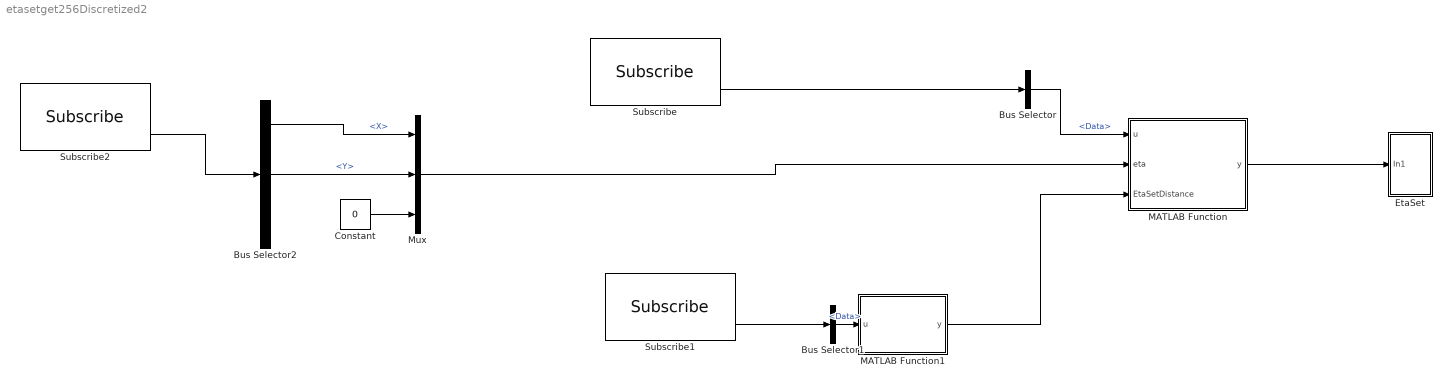
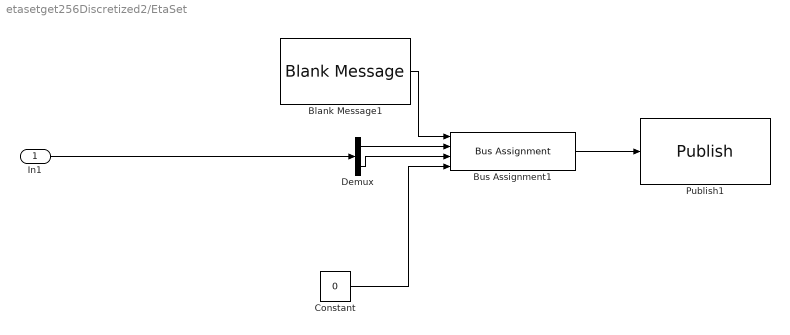
== matlab function etasetget256Discretized2/MATLAB Function ==
function y = fcn(u,eta,EtaSetDistance)

y=[0 0]
Z=length(u)
eta=eta(1:2);

%#codegen
%save('TESTlist2Eta')
Values=[u(1:Z/2) u(Z/2+1:end)];

Iterate2=min([find(Values==1000) ;size(Values,1)])

if u(1,1)==0&&sum((u==0))==Z;
    y=[0 0]
elseif Iterate2==2
%    asl=1
%    a=asl(2);
y(1)=Values(1,2)
y(2)=Values(1,1)
else
%DiscretizedPath
DiscretizedStep=0.01;
counter=1;
DiscretizedPath=zeros(5000,2);
for k=2:Iterate2-1
    DistanceTraveled=norm([Values(k,1)-Values(k-1,1) Values(k,2)-Values(k-1,2)]) ;
    DistanceTraveledX=Values(k,1)-Values(k-1,1);
    DistanceTraveledY=Values(k,2)-Values(k-1,2);
    Niterations=floor(DistanceTraveled/DiscretizedStep);
for z=1:Niterations
    DiscretizedPath(counter,1)=Values(k-1,1)+z*DistanceTraveledX/Niterations;
    DiscretizedPath(counter,2)=Values(k-1,2)+z*DistanceTraveledY/Niterations;
counter=counter+1;
end
end
DiscretizedEnds=min([find(DiscretizedPath==inf) ;size(DiscretizedPath,1)]);
DiscretizedPath=DiscretizedPath(1:DiscretizedEnds-1,1:2);

%%a=asl
eta=eta(2:-1:1)'

%Discretizing PathVector


NearestPointPos=4;
AvstandSaved=1000;
%for i=1:64
%AvstandDummy=(eta(1)-Values(i,1))^2+(eta(2)-Values(i,2))^2;
% if AvstandDummy<AvstandSaved
%     AvstandDummy=AvstandSaved;
% NearestPointPos=i;
% end
%end

    [Avstand NearestPointPos]=min((sum((abs(DiscretizedPath-repmat(eta,size(DiscretizedPath,1),1))).^2')));
if (NearestPointPos-3)>1
    SetPoint=NearestPointPos-3;

else SetPoint=1;
    
end
NIter=round(EtaSetDistance/DiscretizedStep);

SetPoint=max([1 NearestPointPos-NIter])
y(1)=DiscretizedPath(SetPoint,2)
y(2)=DiscretizedPath(SetPoint,1)
%etaset = u;11
%HEADING:
%end
end
y=y
end

== matlab function etasetget256Discretized2/MATLAB Function1 ==
function y = fcn(u)

    y=u;    

if u==0
 y(1)=0.25
end
end

//
// Academic License - for use in teaching, academic research, and meeting
// course requirements at degree granting institutions only.  Not for
// government, commercial, or other organizational use.
//
// File: etasetget256Discretized2.cpp
//
// Code generated for Simulink model 'etasetget256Discretized2'.
//
// Model version                  : 1.122
// Simulink Coder version         : 8.9 (R2015b) 13-Aug-2015
// C/C++ source code generated on : Tue May 10 13:32:34 2016
//
// Target selection: ert.tlc
// Embedded hardware selection: Generic->Unspecified (assume 32-bit Generic)
// Code generation objectives: Unspecified
// Validation result: Not run
//
#include "etasetget256Discretized2.h"
#include "etasetget256Discretized2_private.h"
#define etasetget256Dis_MessageQueueLen (1)

// Block signals (auto storage)
B_etasetget256Discretized2_T etasetget256Discretized2_B;

// Block states (auto storage)
DW_etasetget256Discretized2_T etasetget256Discretized2_DW;

// Real-time model
RT_MODEL_etasetget256Discreti_T etasetget256Discretized2_M_;
RT_MODEL_etasetget256Discreti_T *const etasetget256Discretized2_M =
  &etasetget256Discretized2_M_;

// Forward declaration for local functions
static real_T etasetget256Discretized2_sum(const boolean_T x[256]);
static void etasetget256Discretized2_repmat(const real_T a[2], real_T varargin_1,
  real_T b_data[], int32_T b_sizes[2]);
static void etasetget256Discretized2_abs(const real_T x_data[], const int32_T
  x_sizes[2], real_T y_data[], int32_T y_sizes[2]);
static void etasetget256Discretized2_power(const real_T a_data[], const int32_T
  a_sizes[2], real_T y_data[], int32_T y_sizes[2]);
static void etasetget256Discretized2_sum_k(const real_T x_data[], const int32_T
  x_sizes[2], real_T y_data[], int32_T y_sizes[2]);
static real32_T etasetget256Discretized2_norm(const real32_T x[2]);

// Function for MATLAB Function: '<Root>/MATLAB Function'
static real_T etasetget256Discretized2_sum(const boolean_T x[256])
{
  real_T y;
  int32_T k;
  y = x[0];
  for (k = 0; k < 255; k++) {
    y += (real_T)x[k + 1];
  }

  return y;
}

// Function for MATLAB Function: '<Root>/MATLAB Function'
static void etasetget256Discretized2_repmat(const real_T a[2], real_T varargin_1,
  real_T b_data[], int32_T b_sizes[2])
{
  int32_T itilerow;
  int32_T varargin_1_idx_0;
  int16_T outsize_idx_0;
  outsize_idx_0 = (int16_T)(int32_T)varargin_1;
  b_sizes[0] = outsize_idx_0;
  b_sizes[1] = 2;
  if (!(outsize_idx_0 == 0)) {
    varargin_1_idx_0 = (int32_T)varargin_1;
    for (itilerow = 1; itilerow <= varargin_1_idx_0; itilerow++) {
      b_data[itilerow - 1] = a[0];
    }

    for (itilerow = 1; itilerow <= varargin_1_idx_0; itilerow++) {
      b_data[(varargin_1_idx_0 + itilerow) - 1] = a[1];
    }
  }
}

// Function for MATLAB Function: '<Root>/MATLAB Function'
static void etasetget256Discretized2_abs(const real_T x_data[], const int32_T
  x_sizes[2], real_T y_data[], int32_T y_sizes[2])
{
  int32_T n;
  int32_T k;
  y_sizes[0] = (int16_T)x_sizes[0];
  y_sizes[1] = 2;
  n = x_sizes[0] << 1;
  for (k = 0; k + 1 <= n; k++) {
    y_data[k] = fabs(x_data[k]);
  }
}

// Function for MATLAB Function: '<Root>/MATLAB Function'
static void etasetget256Discretized2_power(const real_T a_data[], const int32_T
  a_sizes[2], real_T y_data[], int32_T y_sizes[2])
{
  int32_T n;
  int32_T k;
  y_sizes[0] = (int16_T)a_sizes[0];
  y_sizes[1] = 2;
  n = a_sizes[0] << 1;
  for (k = 0; k + 1 <= n; k++) {
    y_data[k] = a_data[k] * a_data[k];
  }
}

// Function for MATLAB Function: '<Root>/MATLAB Function'
static void etasetget256Discretized2_sum_k(const real_T x_data[], const int32_T
  x_sizes[2], real_T y_data[], int32_T y_sizes[2])
{
  int32_T ix;
  int32_T iy;
  int32_T ixstart;
  int32_T i;
  y_sizes[0] = 1;
  y_sizes[1] = (int16_T)x_sizes[1];
  if (x_sizes[1] == 0) {
    y_sizes[0] = 1;
    ix = y_sizes[1];
    for (iy = 0; iy < ix; iy++) {
      y_data[iy] = 0.0;
    }
  } else {
    ix = 1;
    iy = -1;
    for (i = 1; i <= x_sizes[1]; i++) {
      ixstart = ix;
      ix += 2;
      iy++;
      y_data[iy] = x_data[ixstart - 1] + x_data[ixstart];
    }
  }
}

real_T rt_roundd_snf(real_T u)
{
  real_T y;
  if (fabs(u) < 4.503599627370496E+15) {
    if (u >= 0.5) {
      y = floor(u + 0.5);
    } else if (u > -0.5) {
      y = u * 0.0;
    } else {
      y = ceil(u - 0.5);
    }
  } else {
    y = u;
  }

  return y;
}

// Function for MATLAB Function: '<Root>/MATLAB Function'
static real32_T etasetget256Discretized2_norm(const real32_T x[2])
{
  real32_T y;
  real32_T scale;
  real32_T absxk;
  real32_T t;
  scale = 1.17549435E-38F;
  absxk = (real32_T)fabs((real_T)x[0]);
  if (absxk > 1.17549435E-38F) {
    y = 1.0F;
    scale = absxk;
  } else {
    t = absxk / 1.17549435E-38F;
    y = t * t;
  }

  absxk = (real32_T)fabs((real_T)x[1]);
  if (absxk > scale) {
    t = scale / absxk;
    y = y * t * t + 1.0F;
    scale = absxk;
  } else {
    t = absxk / scale;
    y += t * t;
  }

  return scale * (real32_T)sqrt((real_T)y);
}

// Model step function
void etasetget256Discretized2_step(void)
{
  real32_T DistanceTraveledX;
  real32_T DistanceTraveledY;
  real32_T Niterations;
  int32_T idx;
  int32_T ixstart;
  int32_T n;
  int32_T c_ix;
  boolean_T guard1;
  boolean_T varargout_1;
  int32_T DiscretizedPath_sizes[2];
  int32_T tmp_sizes[2];

  // Outputs for Atomic SubSystem: '<Root>/Subscribe'
  // Start for MATLABSystem: '<S4>/SourceBlock' incorporates:
  //   MATLABSystem: '<S4>/SourceBlock'

  varargout_1 = Sub_etasetget256Discretized2_404.get_latest_msg
    (&etasetget256Discretized2_B.varargout_2);

  // Outputs for Enabled SubSystem: '<S4>/Enabled Subsystem' incorporates:
  //   EnablePort: '<S9>/Enable'

  // MATLABSystem: '<S4>/SourceBlock' incorporates:
  //   Inport: '<S9>/In1'

  if (varargout_1) {
    etasetget256Discretized2_B.In1 = etasetget256Discretized2_B.varargout_2;
  }

  // End of Outputs for SubSystem: '<S4>/Enabled Subsystem'
  // End of Outputs for SubSystem: '<Root>/Subscribe'

  // Outputs for Atomic SubSystem: '<Root>/Subscribe2'
  // Start for MATLABSystem: '<S6>/SourceBlock' incorporates:
  //   MATLABSystem: '<S6>/SourceBlock'

  varargout_1 = Sub_etasetget256Discretized2_370.get_latest_msg
    (&etasetget256Discretized2_B.varargout_2_m);

  // Outputs for Enabled SubSystem: '<S6>/Enabled Subsystem' incorporates:
  //   EnablePort: '<S11>/Enable'

  // MATLABSystem: '<S6>/SourceBlock' incorporates:
  //   Inport: '<S11>/In1'

  if (varargout_1) {
    etasetget256Discretized2_B.In1_k = etasetget256Discretized2_B.varargout_2_m;
  }

  // End of Outputs for SubSystem: '<S6>/Enabled Subsystem'
  // End of Outputs for SubSystem: '<Root>/Subscribe2'

  // Outputs for Atomic SubSystem: '<Root>/Subscribe1'
  // Start for MATLABSystem: '<S5>/SourceBlock' incorporates:
  //   MATLABSystem: '<S5>/SourceBlock'

  varargout_1 = Sub_etasetget256Discretized2_405.get_latest_msg
    (&etasetget256Discretized2_B.varargout_2_k);

  // Outputs for Enabled SubSystem: '<S5>/Enabled Subsystem' incorporates:
  //   EnablePort: '<S10>/Enable'

  // MATLABSystem: '<S5>/SourceBlock' incorporates:
  //   Inport: '<S10>/In1'

  if (varargout_1) {
    etasetget256Discretized2_B.In1_b = etasetget256Discretized2_B.varargout_2_k;
  }

  // End of Outputs for SubSystem: '<S5>/Enabled Subsystem'
  // End of Outputs for SubSystem: '<Root>/Subscribe1'

  // MATLAB Function: '<Root>/MATLAB Function1'
  // MATLAB Function 'MATLAB Function1': '<S3>:1'
  // '<S3>:1:3'
  etasetget256Discretized2_B.y = etasetget256Discretized2_B.In1_b.Data;
  if (etasetget256Discretized2_B.In1_b.Data == 0.0) {
    // '<S3>:1:5'
    // '<S3>:1:6'
    etasetget256Discretized2_B.y = 0.25;
  }

  // End of MATLAB Function: '<Root>/MATLAB Function1'

  // MATLAB Function: '<Root>/MATLAB Function' incorporates:
  //   SignalConversion: '<S2>/TmpSignal ConversionAt SFunction Inport2'

  // MATLAB Function 'MATLAB Function': '<S2>:1'
  // '<S2>:1:5'
  // save('TESTlist2Eta')
  // '<S2>:1:9'
  for (ixstart = 0; ixstart < 128; ixstart++) {
    etasetget256Discretized2_B.Values[ixstart] =
      etasetget256Discretized2_B.In1.Data[ixstart];
    etasetget256Discretized2_B.Values[ixstart + 128] =
      etasetget256Discretized2_B.In1.Data[128 + ixstart];
  }

  // '<S2>:1:11'
  for (ixstart = 0; ixstart < 256; ixstart++) {
    etasetget256Discretized2_B.x[ixstart] =
      (etasetget256Discretized2_B.Values[ixstart] == 1000.0F);
  }

  idx = 0;
  ixstart = 1;
  varargout_1 = false;
  while ((!varargout_1) && (ixstart < 257)) {
    guard1 = false;
    if (etasetget256Discretized2_B.x[ixstart - 1]) {
      idx++;
      etasetget256Discretized2_B.ii_data[idx - 1] = (int16_T)ixstart;
      if (idx >= 256) {
        varargout_1 = true;
      } else {
        guard1 = true;
      }
    } else {
      guard1 = true;
    }

    if (guard1) {
      ixstart++;
    }
  }

  if (1 > idx) {
    idx = 0;
  }

  n = idx + 1;
  for (ixstart = 0; ixstart < idx; ixstart++) {
    etasetget256Discretized2_B.varargin_1_data[ixstart] =
      etasetget256Discretized2_B.ii_data[ixstart];
  }

  etasetget256Discretized2_B.varargin_1_data[idx] = 128;
  idx = etasetget256Discretized2_B.varargin_1_data[0];
  if (n > 1) {
    for (ixstart = 1; ixstart + 1 <= n; ixstart++) {
      if (etasetget256Discretized2_B.varargin_1_data[ixstart] < idx) {
        idx = etasetget256Discretized2_B.varargin_1_data[ixstart];
      }
    }
  }

  for (ixstart = 0; ixstart < 256; ixstart++) {
    etasetget256Discretized2_B.x[ixstart] =
      (etasetget256Discretized2_B.In1.Data[ixstart] == 0.0F);
  }

  if ((etasetget256Discretized2_B.In1.Data[0] == 0.0F) &&
      (etasetget256Discretized2_sum(etasetget256Discretized2_B.x) == 256.0)) {
    // '<S2>:1:13'
    // '<S2>:1:14'
    etasetget256Discretized2_B.counter = 0.0;
    etasetget256Discretized2_B.y = 0.0;
  } else if (idx == 2) {
    // '<S2>:1:15'
    //     asl=1
    //     a=asl(2);
    // '<S2>:1:18'
    etasetget256Discretized2_B.counter = etasetget256Discretized2_B.Values[128];

    // '<S2>:1:19'
    etasetget256Discretized2_B.y = etasetget256Discretized2_B.Values[0];
  } else {
    // DiscretizedPath
    // '<S2>:1:23'
    etasetget256Discretized2_B.counter = 1.0;

    // '<S2>:1:24'
    memset(&etasetget256Discretized2_B.DiscretizedPath[0], 0, 10000U * sizeof
           (real_T));

    // '<S2>:1:25'
    for (ixstart = 0; ixstart <= idx - 3; ixstart++) {
      // '<S2>:1:25'
      // '<S2>:1:26'
      // '<S2>:1:27'
      DistanceTraveledX = etasetget256Discretized2_B.Values[ixstart + 1] -
        etasetget256Discretized2_B.Values[ixstart];

      // '<S2>:1:28'
      DistanceTraveledY = etasetget256Discretized2_B.Values[ixstart + 129] -
        etasetget256Discretized2_B.Values[ixstart + 128];

      // '<S2>:1:29'
      etasetget256Discretized2_B.Values_c[0] =
        etasetget256Discretized2_B.Values[ixstart + 1] -
        etasetget256Discretized2_B.Values[ixstart];
      etasetget256Discretized2_B.Values_c[1] =
        etasetget256Discretized2_B.Values[ixstart + 129] -
        etasetget256Discretized2_B.Values[ixstart + 128];
      Niterations = (real32_T)floor((real_T)(etasetget256Discretized2_norm
        (etasetget256Discretized2_B.Values_c) / 0.01F));

      // '<S2>:1:30'
      for (n = 0; n < (int32_T)Niterations; n++) {
        // '<S2>:1:30'
        // '<S2>:1:31'
        etasetget256Discretized2_B.DiscretizedPath[(int32_T)
          etasetget256Discretized2_B.counter - 1] = (1.0F + (real32_T)n) *
          DistanceTraveledX / Niterations +
          etasetget256Discretized2_B.Values[ixstart];

        // '<S2>:1:32'
        etasetget256Discretized2_B.DiscretizedPath[(int32_T)
          etasetget256Discretized2_B.counter + 4999] = (1.0F + (real32_T)n) *
          DistanceTraveledY / Niterations +
          etasetget256Discretized2_B.Values[ixstart + 128];

        // '<S2>:1:33'
        etasetget256Discretized2_B.counter++;

        // '<S2>:1:30'
      }

      // '<S2>:1:25'
    }

    // '<S2>:1:36'
    idx = 0;
    ixstart = 1;
    varargout_1 = false;
    while ((!varargout_1) && (ixstart < 10001)) {
      guard1 = false;
      if (etasetget256Discretized2_B.DiscretizedPath[ixstart - 1] == (rtInf)) {
        idx++;
        etasetget256Discretized2_B.c_ii_data[idx - 1] = (int16_T)ixstart;
        if (idx >= 10000) {
          varargout_1 = true;
        } else {
          guard1 = true;
        }
      } else {
        guard1 = true;
      }

      if (guard1) {
        ixstart++;
      }
    }

    if (1 > idx) {
      idx = 0;
    }

    n = idx + 1;
    for (ixstart = 0; ixstart < idx; ixstart++) {
      etasetget256Discretized2_B.varargin_1_data[ixstart] =
        etasetget256Discretized2_B.c_ii_data[ixstart];
    }

    etasetget256Discretized2_B.varargin_1_data[idx] = 5000;
    idx = etasetget256Discretized2_B.varargin_1_data[0];
    if (n > 1) {
      for (ixstart = 1; ixstart + 1 <= n; ixstart++) {
        if (etasetget256Discretized2_B.varargin_1_data[ixstart] < idx) {
          idx = etasetget256Discretized2_B.varargin_1_data[ixstart];
        }
      }
    }

    if (1 > idx - 1) {
      idx = 0;
    } else {
      idx--;
    }

    // '<S2>:1:37'
    // %a=asl
    // '<S2>:1:40'
    // Discretizing PathVector
    // for i=1:64
    // AvstandDummy=(eta(1)-Values(i,1))^2+(eta(2)-Values(i,2))^2;
    //  if AvstandDummy<AvstandSaved
    //      AvstandDummy=AvstandSaved;
    //  NearestPointPos=i;
    //  end
    // end
    etasetget256Discretized2_B.dv0[0] = etasetget256Discretized2_B.In1_k.Y;
    etasetget256Discretized2_B.dv0[1] = etasetget256Discretized2_B.In1_k.X;
    etasetget256Discretized2_repmat(etasetget256Discretized2_B.dv0, (real_T)idx,
      etasetget256Discretized2_B.tmp_data, etasetget256Discretized2_B.tmp_sizes);
    DiscretizedPath_sizes[0] = idx;
    DiscretizedPath_sizes[1] = 2;
    for (ixstart = 0; ixstart < idx; ixstart++) {
      etasetget256Discretized2_B.DiscretizedPath_data[ixstart] =
        etasetget256Discretized2_B.DiscretizedPath[ixstart] -
        etasetget256Discretized2_B.tmp_data[ixstart];
    }

    for (ixstart = 0; ixstart < idx; ixstart++) {
      etasetget256Discretized2_B.DiscretizedPath_data[ixstart + idx] =
        etasetget256Discretized2_B.DiscretizedPath[ixstart + 5000] -
        etasetget256Discretized2_B.tmp_data[ixstart +
        etasetget256Discretized2_B.tmp_sizes[0]];
    }

    etasetget256Discretized2_abs(etasetget256Discretized2_B.DiscretizedPath_data,
      DiscretizedPath_sizes, etasetget256Discretized2_B.tmp_data,
      etasetget256Discretized2_B.tmp_sizes);
    etasetget256Discretized2_power(etasetget256Discretized2_B.tmp_data,
      etasetget256Discretized2_B.tmp_sizes,
      etasetget256Discretized2_B.DiscretizedPath_data, DiscretizedPath_sizes);
    tmp_sizes[0] = 2;
    tmp_sizes[1] = DiscretizedPath_sizes[0];
    idx = DiscretizedPath_sizes[0];
    for (ixstart = 0; ixstart < idx; ixstart++) {
      etasetget256Discretized2_B.tmp_data[ixstart << 1] =
        etasetget256Discretized2_B.DiscretizedPath_data[ixstart];
      etasetget256Discretized2_B.tmp_data[1 + (ixstart << 1)] =
        etasetget256Discretized2_B.DiscretizedPath_data[ixstart +
        DiscretizedPath_sizes[0]];
    }

    etasetget256Discretized2_sum_k(etasetget256Discretized2_B.tmp_data,
      tmp_sizes, etasetget256Discretized2_B.b_varargin_1_data,
      etasetget256Discretized2_B.tmp_sizes);
    ixstart = 1;
    n = etasetget256Discretized2_B.tmp_sizes[1];
    etasetget256Discretized2_B.counter =
      etasetget256Discretized2_B.b_varargin_1_data[0];
    idx = 1;
    if (etasetget256Discretized2_B.tmp_sizes[1] > 1) {
      if (rtIsNaN(etasetget256Discretized2_B.b_varargin_1_data[0])) {
        c_ix = 2;
        varargout_1 = false;
        while ((!varargout_1) && (c_ix <= n)) {
          ixstart = c_ix;
          if (!rtIsNaN(etasetget256Discretized2_B.b_varargin_1_data[c_ix - 1]))
          {
            etasetget256Discretized2_B.counter =
              etasetget256Discretized2_B.b_varargin_1_data[c_ix - 1];
            idx = c_ix;
            varargout_1 = true;
          } else {
            c_ix++;
          }
        }
      }

      if (ixstart < etasetget256Discretized2_B.tmp_sizes[1]) {
        while (ixstart + 1 <= n) {
          if (etasetget256Discretized2_B.b_varargin_1_data[ixstart] <
              etasetget256Discretized2_B.counter) {
            etasetget256Discretized2_B.counter =
              etasetget256Discretized2_B.b_varargin_1_data[ixstart];
            idx = ixstart + 1;
          }

          ixstart++;
        }
      }
    }

    // '<S2>:1:62'
    // '<S2>:1:64'
    etasetget256Discretized2_B.counter = (real_T)idx - rt_roundd_snf
      (etasetget256Discretized2_B.y / 0.01);
    etasetget256Discretized2_B.y = 1.0;
    if (etasetget256Discretized2_B.counter > 1.0) {
      etasetget256Discretized2_B.y = etasetget256Discretized2_B.counter;
    }

    // '<S2>:1:65'
    etasetget256Discretized2_B.counter =
      etasetget256Discretized2_B.DiscretizedPath[(int32_T)
      etasetget256Discretized2_B.y + 4999];

    // '<S2>:1:66'
    etasetget256Discretized2_B.y = etasetget256Discretized2_B.DiscretizedPath
      [(int32_T)etasetget256Discretized2_B.y - 1];

    // etaset = u;11
    // HEADING:
    // end
  }

  // End of MATLAB Function: '<Root>/MATLAB Function'

  // BusAssignment: '<S1>/Bus Assignment1' incorporates:
  //   Constant: '<S1>/Constant'

  // '<S2>:1:71'
  etasetget256Discretized2_B.BusAssignment1.X =
    etasetget256Discretized2_B.counter;
  etasetget256Discretized2_B.BusAssignment1.Y = etasetget256Discretized2_B.y;
  etasetget256Discretized2_B.BusAssignment1.Z =
    etasetget256Discretized2_P.Constant_Value_bx;

  // Outputs for Atomic SubSystem: '<S1>/Publish1'
  // MATLABSystem: '<S8>/SinkBlock'
  Pub_etasetget256Discretized2_400.publish
    (&etasetget256Discretized2_B.BusAssignment1);

  // End of Outputs for SubSystem: '<S1>/Publish1'
}
